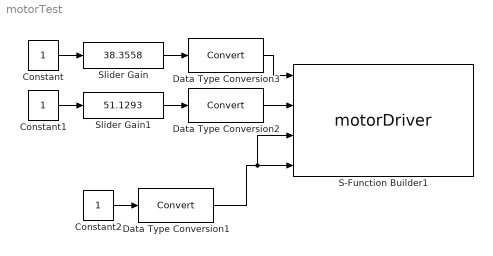
/*
 * Academic License - for use in teaching, academic research, and meeting
 * course requirements at degree granting institutions only.  Not for
 * government, commercial, or other organizational use.
 *
 * File: motorTest.c
 *
 * Code generated for Simulink model 'motorTest'.
 *
 * Model version                  : 1.10
 * Simulink Coder version         : 8.10 (R2016a) 10-Feb-2016
 * C/C++ source code generated on : Tue Dec 27 10:46:08 2016
 *
 * Target selection: ert.tlc
 * Embedded hardware selection: Atmel->AVR
 * Code generation objectives: Unspecified
 * Validation result: Not run
 */

#include "motorTest.h"
#include "motorTest_private.h"
#include "motorTest_dt.h"

/* Block signals (auto storage) */
B_motorTest_T motorTest_B;

/* Block states (auto storage) */
DW_motorTest_T motorTest_DW;

/* Real-time model */
RT_MODEL_motorTest_T motorTest_M_;
RT_MODEL_motorTest_T *const motorTest_M = &motorTest_M_;

/* Model step function */
void motorTest_step(void)
{
  real_T tmp;

  /* DataTypeConversion: '<Root>/Data Type Conversion3' incorporates:
   *  Constant: '<Root>/Constant'
   *  Gain: '<S1>/Slider Gain'
   */
  tmp = floor(motorTest_P.SliderGain_gain * motorTest_P.Constant_Value);
  if (rtIsNaN(tmp) || rtIsInf(tmp)) {
    tmp = 0.0;
  } else {
    tmp = fmod(tmp, 256.0);
  }

  motorTest_B.DataTypeConversion3 = (int8_T)(tmp < 0.0 ? (int16_T)(int8_T)
    -(int8_T)(uint8_T)-tmp : (int16_T)(int8_T)(uint8_T)tmp);

  /* End of DataTypeConversion: '<Root>/Data Type Conversion3' */

  /* DataTypeConversion: '<Root>/Data Type Conversion2' incorporates:
   *  Constant: '<Root>/Constant1'
   *  Gain: '<S2>/Slider Gain'
   */
  tmp = floor(motorTest_P.SliderGain1_gain * motorTest_P.Constant1_Value);
  if (rtIsNaN(tmp) || rtIsInf(tmp)) {
    tmp = 0.0;
  } else {
    tmp = fmod(tmp, 256.0);
  }

  motorTest_B.DataTypeConversion2 = (int8_T)(tmp < 0.0 ? (int16_T)(int8_T)
    -(int8_T)(uint8_T)-tmp : (int16_T)(int8_T)(uint8_T)tmp);

  /* End of DataTypeConversion: '<Root>/Data Type Conversion2' */

  /* DataTypeConversion: '<Root>/Data Type Conversion1' incorporates:
   *  Constant: '<Root>/Constant2'
   */
  tmp = floor(motorTest_P.Constant2_Value);
  if (rtIsNaN(tmp) || rtIsInf(tmp)) {
    tmp = 0.0;
  } else {
    tmp = fmod(tmp, 256.0);
  }

  motorTest_B.DataTypeConversion1 = (int8_T)(tmp < 0.0 ? (int16_T)(int8_T)
    -(int8_T)(uint8_T)-tmp : (int16_T)(int8_T)(uint8_T)tmp);

  /* End of DataTypeConversion: '<Root>/Data Type Conversion1' */

  /* S-Function (motorDriver): '<Root>/S-Function Builder1' */
  motorDriver_Outputs_wrapper(&motorTest_B.DataTypeConversion3,
    &motorTest_B.DataTypeConversion2, &motorTest_B.DataTypeConversion1,
    &motorTest_B.DataTypeConversion1, &motorTest_DW.SFunctionBuilder1_DSTATE);

  /* S-Function "motorDriver_wrapper" Block: <Root>/S-Function Builder1 */
  motorDriver_Update_wrapper(&motorTest_B.DataTypeConversion3,
    &motorTest_B.DataTypeConversion2, &motorTest_B.DataTypeConversion1,
    &motorTest_B.DataTypeConversion1, &motorTest_DW.SFunctionBuilder1_DSTATE);

  /* External mode */
  rtExtModeUploadCheckTrigger(1);

  {                                    /* Sample time: [0.05s, 0.0s] */
    rtExtModeUpload(0, motorTest_M->Timing.taskTime0);
  }

  /* signal main to stop simulation */
  {                                    /* Sample time: [0.05s, 0.0s] */
    if ((rtmGetTFinal(motorTest_M)!=-1) &&
        !((rtmGetTFinal(motorTest_M)-motorTest_M->Timing.taskTime0) >
          motorTest_M->Timing.taskTime0 * (DBL_EPSILON))) {
      rtmSetErrorStatus(motorTest_M, "Simulation finished");
    }

    if (rtmGetStopRequested(motorTest_M)) {
      rtmSetErrorStatus(motorTest_M, "Simulation finished");
    }
  }

  /* Update absolute time for base rate */
  /* The "clockTick0" counts the number of times the code of this task has
   * been executed. The absolute time is the multiplication of "clockTick0"
   * and "Timing.stepSize0". Size of "clockTick0" ensures timer will not
   * overflow during the application lifespan selected.
   */
  motorTest_M->Timing.taskTime0 =
    (++motorTest_M->Timing.clockTick0) * motorTest_M->Timing.stepSize0;
}
